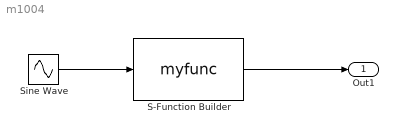
/*
 * m1004.c
 * 
 * Real-Time Workshop code generation for Simulink model "m1004.mdl".
 *
 * Model Version              : 1.1
 * Real-Time Workshop version : 6.1  (R14SP1)  05-Sep-2004
 * C source code generated on : Sun Apr 03 16:14:19 2005
 */

#include "m1004.h"
#include "m1004_private.h"

/* Block signals (auto storage) */
BlockIO_m1004 m1004_B;

/* External output (root outports fed by signals with auto storage) */
ExternalOutputs_m1004 m1004_Y;

/* Real-time model */
rtModel_m1004 m1004_M_;
rtModel_m1004 *m1004_M = &m1004_M_;

/* Model output function */
static void m1004_output(int_T tid)
{

  /* Sin: '<Root>/Sine Wave' */
  m1004_B.SineWave = m1004_P.SineWave_Amp *
    sin(m1004_P.SineWave_Freq * m1004_M->Timing.t[0] + m1004_P.SineWave_Phase) +
    m1004_P.SineWave_Bias;

  /* S-Function "myfunc_wrapper" Block: <Root>/S-Function Builder */

  myfunc_Outputs_wrapper(&m1004_B.SineWave, &m1004_B.SFunctionBuilder );
  printf("Hello World!\n");

  /* Outport: '<Root>/Out1' */
  m1004_Y.Out1 = m1004_B.SFunctionBuilder;
}

/* Model update function */
static void m1004_update(int_T tid)
{

  /* Update absolute time for base rate */

  if(!(++m1004_M->Timing.clockTick0)) ++m1004_M->Timing.clockTickH0;
  m1004_M->Timing.t[0] = m1004_M->Timing.clockTick0 * m1004_M->Timing.stepSize0
    + m1004_M->Timing.clockTickH0 * m1004_M->Timing.stepSize0 * 4294967296.0;

  {
    /* Update absolute timer for sample time: [0.1s, 0.0s] */

    if(!(++m1004_M->Timing.clockTick1)) ++m1004_M->Timing.clockTickH1;
    m1004_M->Timing.t[1] = m1004_M->Timing.clockTick1 *
      m1004_M->Timing.stepSize1 + m1004_M->Timing.clockTickH1 *
      m1004_M->Timing.stepSize1 * 4294967296.0;
  }
}
